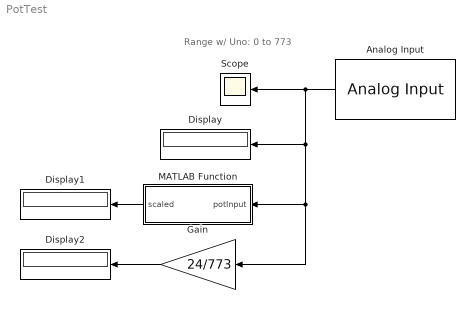
== matlab function PotTest/MATLAB Function ==
% Function to map potentiometer input to linear motion outputs

function scaled = fcn(potInput)

% inputSpan = 773.0; % 773 steps from 0 to max of controls prototype
% outputSpan = 24.0; % approx 24mm linear output range

scaled = (potInput/773.0)*24.0;

end

/*
 * Academic License - for use in teaching, academic research, and meeting
 * course requirements at degree granting institutions only.  Not for
 * government, commercial, or other organizational use.
 *
 * File: PotTest.c
 *
 * Code generated for Simulink model 'PotTest'.
 *
 * Model version                  : 1.29
 * Simulink Coder version         : 9.1 (R2019a) 23-Nov-2018
 * C/C++ source code generated on : Wed Feb 26 15:36:19 2020
 *
 * Target selection: ert.tlc
 * Embedded hardware selection: Atmel->AVR
 * Code generation objectives: Unspecified
 * Validation result: Not run
 */

#include "PotTest.h"
#include "PotTest_private.h"
#include "PotTest_dt.h"

/* Block signals (default storage) */
B_PotTest_T PotTest_B;

/* Block states (default storage) */
DW_PotTest_T PotTest_DW;

/* Real-time model */
RT_MODEL_PotTest_T PotTest_M_;
RT_MODEL_PotTest_T *const PotTest_M = &PotTest_M_;

/* Forward declaration for local functions */
static void matlabCodegenHandle_matlabCodeg(codertarget_arduinobase_inter_T *obj);
static void arduino_AnalogInput_set_pinNumb(codertarget_arduinobase_inter_T *obj,
  e_codertarget_arduinobase_int_T *iobj_0);
real_T rt_roundd_snf(real_T u)
{
  real_T y;
  if (fabs(u) < 4.503599627370496E+15) {
    if (u >= 0.5) {
      y = floor(u + 0.5);
    } else if (u > -0.5) {
      y = u * 0.0;
    } else {
      y = ceil(u - 0.5);
    }
  } else {
    y = u;
  }

  return y;
}

static void matlabCodegenHandle_matlabCodeg(codertarget_arduinobase_inter_T *obj)
{
  if (!obj->matlabCodegenIsDeleted) {
    obj->matlabCodegenIsDeleted = true;
  }
}

static void arduino_AnalogInput_set_pinNumb(codertarget_arduinobase_inter_T *obj,
  e_codertarget_arduinobase_int_T *iobj_0)
{
  iobj_0->AvailablePwmPinNames.f1 = '2';
  iobj_0->AvailablePwmPinNames.f2 = '3';
  iobj_0->AvailablePwmPinNames.f3 = '4';
  iobj_0->AvailablePwmPinNames.f4 = '5';
  iobj_0->AvailablePwmPinNames.f5 = '6';
  iobj_0->AvailablePwmPinNames.f6 = '7';
  iobj_0->AvailablePwmPinNames.f7 = '8';
  iobj_0->AvailablePwmPinNames.f8 = '9';
  iobj_0->AvailablePwmPinNames.f9[0] = '1';
  iobj_0->AvailablePwmPinNames.f9[1] = '0';
  iobj_0->AvailablePwmPinNames.f10[0] = '1';
  iobj_0->AvailablePwmPinNames.f10[1] = '1';
  iobj_0->AvailablePwmPinNames.f11[0] = '1';
  iobj_0->AvailablePwmPinNames.f11[1] = '2';
  iobj_0->AvailablePwmPinNames.f12[0] = '1';
  iobj_0->AvailablePwmPinNames.f12[1] = '3';
  obj->Hw = iobj_0;
}

/* Model step function */
void PotTest_step(void)
{
  /* MATLABSystem: '<Root>/Analog Input' */
  if (PotTest_DW.obj.SampleTime != PotTest_P.AnalogInput_SampleTime) {
    PotTest_DW.obj.SampleTime = PotTest_P.AnalogInput_SampleTime;
  }

  MW_AnalogIn_Start(PotTest_DW.obj.MW_ANALOGIN_HANDLE);
  MW_AnalogInSingle_ReadResult(PotTest_DW.obj.MW_ANALOGIN_HANDLE,
    &PotTest_B.AnalogInput, 3);

  /* End of MATLABSystem: '<Root>/Analog Input' */

  /* MATLAB Function: '<Root>/MATLAB Function' */
  PotTest_B.scaled = (uint16_T)rt_roundd_snf((real_T)PotTest_B.AnalogInput /
    773.0) * 24U;

  /* Gain: '<Root>/Gain' */
  PotTest_B.Gain = (uint32_T)PotTest_P.Gain_Gain * PotTest_B.AnalogInput;

  /* External mode */
  rtExtModeUploadCheckTrigger(1);

  {                                    /* Sample time: [0.001s, 0.0s] */
    rtExtModeUpload(0, (real_T)PotTest_M->Timing.taskTime0);
  }

  /* signal main to stop simulation */
  {                                    /* Sample time: [0.001s, 0.0s] */
    if ((rtmGetTFinal(PotTest_M)!=-1) &&
        !((rtmGetTFinal(PotTest_M)-PotTest_M->Timing.taskTime0) >
          PotTest_M->Timing.taskTime0 * (DBL_EPSILON))) {
      rtmSetErrorStatus(PotTest_M, "Simulation finished");
    }

    if (rtmGetStopRequested(PotTest_M)) {
      rtmSetErrorStatus(PotTest_M, "Simulation finished");
    }
  }

  /* Update absolute time for base rate */
  /* The "clockTick0" counts the number of times the code of this task has
   * been executed. The absolute time is the multiplication of "clockTick0"
   * and "Timing.stepSize0". Size of "clockTick0" ensures timer will not
   * overflow during the application lifespan selected.
   */
  PotTest_M->Timing.taskTime0 =
    (++PotTest_M->Timing.clockTick0) * PotTest_M->Timing.stepSize0;
}
